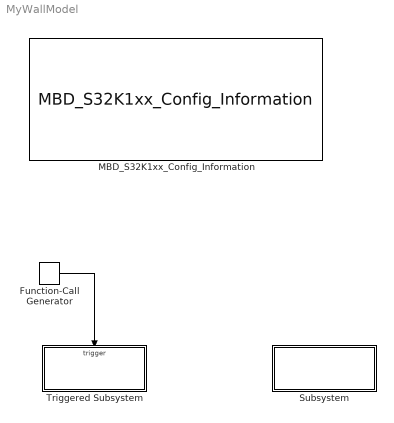
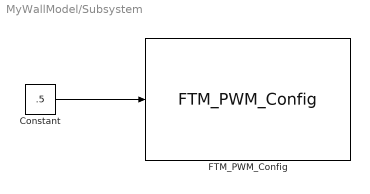
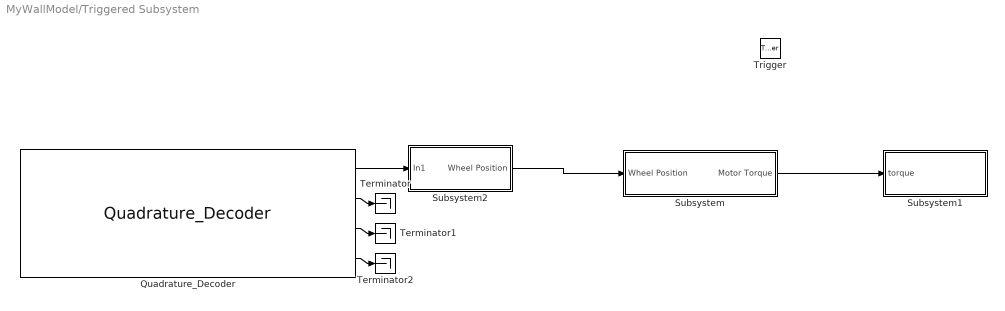
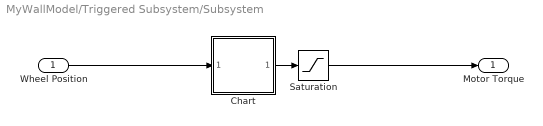
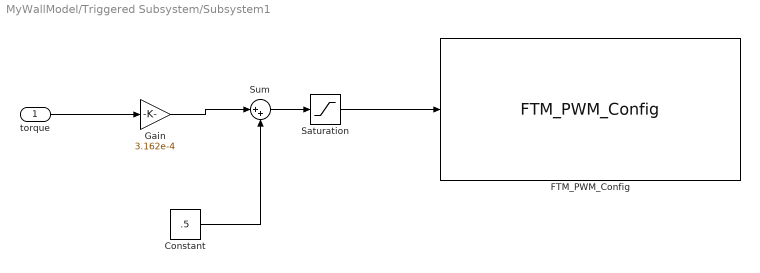
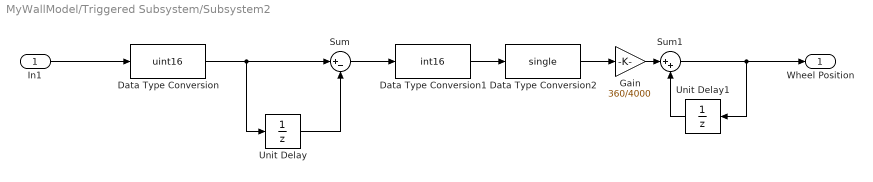
== stateflow chart MyWallModel/Triggered
Subsystem/Subsystem/Chart ==
  state OutsideWall
    during:torque=0;
  state InsideWall
    during:torque=k*position;
  (default) -> OutsideWall
  OutsideWall -> InsideWall : [position>=0]
  InsideWall -> OutsideWall : [position<0]
  data: torque output single; position input single; k parameter

/*
 * Academic License - for use in teaching, academic research, and meeting
 * course requirements at degree granting institutions only.  Not for
 * government, commercial, or other organizational use.
 *
 * File: MyWallModel.c
 *
 * Code generated for Simulink model 'MyWallModel'.
 *
 * Model version                   : 1.8
 * Simulink Coder version          : 9.8 (R2022b) 13-May-2022
 * MBDT for S32K1xx Series Version : 4.3.0 (R2016a-R2022a) 13-Sep-2022
 * C/C++ source code generated on  : Thu Nov  9 15:35:02 2023
 *
 * Target selection: mbd_s32k.tlc
 * Embedded hardware selection: ARM Compatible->ARM Cortex
 * Code generation objectives: Unspecified
 * Validation result: Not run
 */

#include "MyWallModel.h"
#include "rtwtypes.h"
#include "MyWallModel_private.h"

/* Named constants for Chart: '<S3>/Chart' */
#define MyWallModel_IN_InsideWall      ((uint8_T)1U)
#define MyWallModel_IN_OutsideWall     ((uint8_T)2U)

/* Block signals (default storage) */
B_MyWallModel_T MyWallModel_B;

/* Block states (default storage) */
DW_MyWallModel_T MyWallModel_DW;

/* Real-time model */
static RT_MODEL_MyWallModel_T MyWallModel_M_;
RT_MODEL_MyWallModel_T *const MyWallModel_M = &MyWallModel_M_;

/* Model step function */
void MyWallModel_step(void)
{
  real32_T tmp;

  /* S-Function (fcgen): '<Root>/Function-Call Generator' incorporates:
   *  SubSystem: '<Root>/Triggered Subsystem'
   */
  /* S-Function (ftm_s32k_quadrature_decoder): '<S2>/Quadrature_Decoder' */

  /* FTM2: get counter value */
  MyWallModel_B.Quadrature_Decoder_o2 = FTM_DRV_GetQuadDir(FTM2);
  MyWallModel_B.Quadrature_Decoder_o4 = FTM_DRV_GetQuadTimerOverflowDir(FTM2);
  MyWallModel_B.Quadrature_Decoder_o3 = FTM_DRV_HasTimerOverflowed(FTM2);
  MyWallModel_B.Quadrature_Decoder_o1 = FTM_DRV_GetCounter(FTM2);
  FTM_DRV_ClearTimerOverflow(FTM2);

  /* Sum: '<S5>/Sum1' incorporates:
   *  DataTypeConversion: '<S5>/Data Type Conversion1'
   *  DataTypeConversion: '<S5>/Data Type Conversion2'
   *  Gain: '<S5>/Gain'
   *  Sum: '<S5>/Sum'
   *  UnitDelay: '<S5>/Unit Delay'
   *  UnitDelay: '<S5>/Unit Delay1'
   */
  MyWallModel_DW.UnitDelay1_DSTATE += (real32_T)(int16_T)
    (MyWallModel_B.Quadrature_Decoder_o1 - MyWallModel_DW.UnitDelay_DSTATE) *
    0.09F;

  /* Chart: '<S3>/Chart' incorporates:
   *  UnitDelay: '<S5>/Unit Delay1'
   */
  if (MyWallModel_DW.is_active_c3_MyWallModel == 0U) {
    MyWallModel_DW.is_active_c3_MyWallModel = 1U;
    MyWallModel_DW.is_c3_MyWallModel = MyWallModel_IN_OutsideWall;
  } else if (MyWallModel_DW.is_c3_MyWallModel == MyWallModel_IN_InsideWall) {
    if (MyWallModel_DW.UnitDelay1_DSTATE < 0.0F) {
      MyWallModel_DW.is_c3_MyWallModel = MyWallModel_IN_OutsideWall;
    } else {
      MyWallModel_B.torque = 500.0F * MyWallModel_DW.UnitDelay1_DSTATE;
    }

    /* case IN_OutsideWall: */
  } else if (MyWallModel_DW.UnitDelay1_DSTATE >= 0.0F) {
    MyWallModel_DW.is_c3_MyWallModel = MyWallModel_IN_InsideWall;
  } else {
    MyWallModel_B.torque = 0.0F;
  }

  /* End of Chart: '<S3>/Chart' */

  /* Saturate: '<S3>/Saturation' */
  if (MyWallModel_B.torque > 822.0F) {
    tmp = 822.0F;
  } else if (MyWallModel_B.torque < -822.0F) {
    tmp = -822.0F;
  } else {
    tmp = MyWallModel_B.torque;
  }

  /* Saturate: '<S4>/Saturation' incorporates:
   *  Constant: '<S4>/Constant'
   *  Gain: '<S4>/Gain'
   *  Saturate: '<S3>/Saturation'
   *  Sum: '<S4>/Sum'
   */
  MyWallModel_B.Saturation = 0.0003162F * tmp + 0.5F;

  /* S-Function (ftm_s32k_pwm_config): '<S4>/FTM_PWM_Config' */
  {
    uint16_t dutyA = FTM_MAX_DUTY_CYCLE * MyWallModel_B.Saturation;
    FTM_DRV_UpdatePwmChannel(FTM_PWM0, 0U, FTM_PWM_UPDATE_IN_DUTY_CYCLE, dutyA,
      0, true);
  }

  /* Update for UnitDelay: '<S5>/Unit Delay' */
  MyWallModel_DW.UnitDelay_DSTATE = MyWallModel_B.Quadrature_Decoder_o1;

  /* End of Outputs for S-Function (fcgen): '<Root>/Function-Call Generator' */

  /* S-Function (ftm_s32k_pwm_config): '<S1>/FTM_PWM_Config' incorporates:
   *  Constant: '<S1>/Constant'
   */
  {
    uint16_t dutyA = FTM_MAX_DUTY_CYCLE * 0.5F;
    FTM_DRV_UpdatePwmChannel(FTM_PWM3, 0U, FTM_PWM_UPDATE_IN_DUTY_CYCLE, dutyA,
      0, true);
  }
}
